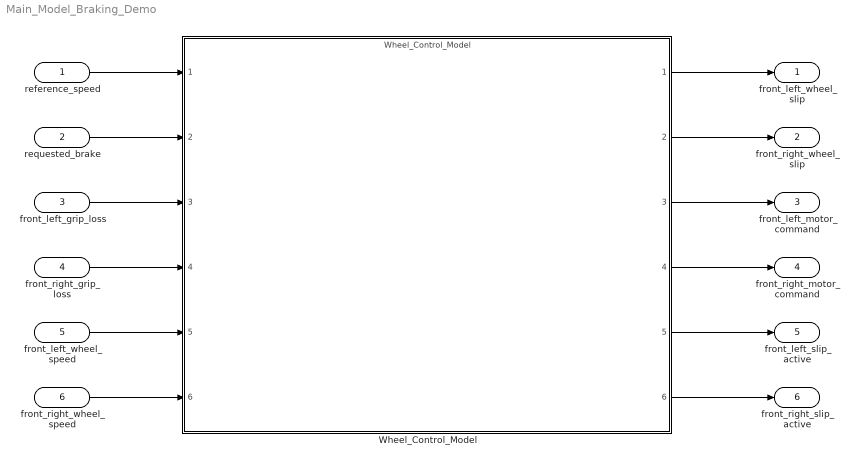
//
// File: Main_Model_Braking_Demo.cpp
//
// Code generated for Simulink model 'Main_Model_Braking_Demo'.
//
// Model version                  : 1.13
// Simulink Coder version         : 23.2 (R2023b) 01-Aug-2023
// C/C++ source code generated on : Thu Sep 17 09:48:31 2026
//
// Target selection: ert.tlc
// Embedded hardware selection: ARM Compatible->ARM Cortex-M
// Code generation objectives: Unspecified
// Validation result: Not run
//
#include "Main_Model_Braking_Demo.h"
#include "Wheel_Control_Model.h"

// Model step function
void Main_Model_Braking_Demo::step()
{
  // ModelReference: '<Root>/Wheel_Control_Model' incorporates:
  //   Inport: '<Root>/front_left_grip_loss'
  //   Inport: '<Root>/front_left_wheel_speed'
  //   Inport: '<Root>/front_right_grip_loss'
  //   Inport: '<Root>/front_right_wheel_speed'
  //   Inport: '<Root>/reference_speed'
  //   Inport: '<Root>/requested_brake'
  //   Outport: '<Root>/front_left_motor_command'
  //   Outport: '<Root>/front_left_slip_active'
  //   Outport: '<Root>/front_left_wheel_slip'
  //   Outport: '<Root>/front_right_motor_command'
  //   Outport: '<Root>/front_right_slip_active'
  //   Outport: '<Root>/front_right_wheel_slip'

  Wheel_Control_ModelMDLOBJ1.step(&Main_Model_Braking_Demo_U.reference_speed,
    &Main_Model_Braking_Demo_U.requested_brake,
    &Main_Model_Braking_Demo_U.front_left_grip_loss,
    &Main_Model_Braking_Demo_U.front_right_grip_loss,
    &Main_Model_Braking_Demo_U.front_left_wheel_speed,
    &Main_Model_Braking_Demo_U.front_right_wheel_speed,
    &Main_Model_Braking_Demo_Y.front_left_wheel_slip,
    &Main_Model_Braking_Demo_Y.front_right_wheel_slip,
    &Main_Model_Braking_Demo_Y.front_left_motor_command,
    &Main_Model_Braking_Demo_Y.front_right_motor_command,
    &Main_Model_Braking_Demo_Y.front_left_slip_active,
    &Main_Model_Braking_Demo_Y.front_right_slip_active);
}
